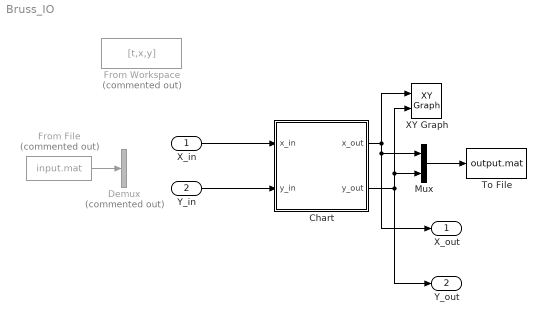
== stateflow chart Chart ==
  state Brussellator
    du:
    x_dot = 1 + x*x*y - 2.5*x;
    y_dot = 1.5*x - x*x*y;
    x_out = x;
    y_out = y;
  note: @annotation-mode=Brussellator; k=2000.0; gamma=0.0;
  (default) -> Brussellator : {x=x_in, y=y_in}
  data: x local double; y local double; x_out output double; y_out output double; x_in input double; y_in input double

//
// Academic License - for use in teaching, academic research, and meeting
// course requirements at degree granting institutions only.  Not for
// government, commercial, or other organizational use.
//
// File: Bruss_IO.cpp
//
// Code generated for Simulink model 'Bruss_IO'.
//
// Model version                  : 1.47
// Simulink Coder version         : 8.9 (R2015b) 13-Aug-2015
// C/C++ source code generated on : Fri Feb 19 22:34:44 2016
//
// Target selection: ert.tlc
// Embedded hardware selection: 32-bit Generic
// Code generation objectives: Unspecified
// Validation result: Not run
//
#include "Bruss_IO.h"
#include "Bruss_IO_private.h"

//
// This function updates continuous states using the ODE3 fixed-step
// solver algorithm
//
void Bruss_IOModelClass::rt_ertODEUpdateContinuousStates(RTWSolverInfo *si )
{
  // Solver Matrices
  static const real_T rt_ODE3_A[3] = {
    1.0/2.0, 3.0/4.0, 1.0
  };

  static const real_T rt_ODE3_B[3][3] = {
    { 1.0/2.0, 0.0, 0.0 },

    { 0.0, 3.0/4.0, 0.0 },

    { 2.0/9.0, 1.0/3.0, 4.0/9.0 }
  };

  time_T t = rtsiGetT(si);
  time_T tnew = rtsiGetSolverStopTime(si);
  time_T h = rtsiGetStepSize(si);
  real_T *x = rtsiGetContStates(si);
  ODE3_IntgData *id = (ODE3_IntgData *)rtsiGetSolverData(si);
  real_T *y = id->y;
  real_T *f0 = id->f[0];
  real_T *f1 = id->f[1];
  real_T *f2 = id->f[2];
  real_T hB[3];
  int_T i;
  int_T nXc = 2;
  rtsiSetSimTimeStep(si,MINOR_TIME_STEP);

  // Save the state values at time t in y, we'll use x as ynew.
  (void) memcpy(y, x,
                (uint_T)nXc*sizeof(real_T));

  // Assumes that rtsiSetT and ModelOutputs are up-to-date
  // f0 = f(t,y)
  rtsiSetdX(si, f0);
  Bruss_IO_derivatives();

  // f(:,2) = feval(odefile, t + hA(1), y + f*hB(:,1), args(:)(*));
  hB[0] = h * rt_ODE3_B[0][0];
  for (i = 0; i < nXc; i++) {
    x[i] = y[i] + (f0[i]*hB[0]);
  }

  rtsiSetT(si, t + h*rt_ODE3_A[0]);
  rtsiSetdX(si, f1);
  this->step();
  Bruss_IO_derivatives();

  // f(:,3) = feval(odefile, t + hA(2), y + f*hB(:,2), args(:)(*));
  for (i = 0; i <= 1; i++) {
    hB[i] = h * rt_ODE3_B[1][i];
  }

  for (i = 0; i < nXc; i++) {
    x[i] = y[i] + (f0[i]*hB[0] + f1[i]*hB[1]);
  }

  rtsiSetT(si, t + h*rt_ODE3_A[1]);
  rtsiSetdX(si, f2);
  this->step();
  Bruss_IO_derivatives();

  // tnew = t + hA(3);
  // ynew = y + f*hB(:,3);
  for (i = 0; i <= 2; i++) {
    hB[i] = h * rt_ODE3_B[2][i];
  }

  for (i = 0; i < nXc; i++) {
    x[i] = y[i] + (f0[i]*hB[0] + f1[i]*hB[1] + f2[i]*hB[2]);
  }

  rtsiSetT(si, tnew);
  rtsiSetSimTimeStep(si,MAJOR_TIME_STEP);
}

// Model step function
void Bruss_IOModelClass::step()
{
  boolean_T stateChanged;
  if (rtmIsMajorTimeStep((&Bruss_IO_M))) {
    // set solver stop time
    rtsiSetSolverStopTime(&(&Bruss_IO_M)->solverInfo,(((&Bruss_IO_M)
      ->Timing.clockTick0+1)*(&Bruss_IO_M)->Timing.stepSize0));
  }                                    // end MajorTimeStep

  // Update absolute time of base rate at minor time step
  if (rtmIsMinorTimeStep((&Bruss_IO_M))) {
    (&Bruss_IO_M)->Timing.t[0] = rtsiGetT(&(&Bruss_IO_M)->solverInfo);
  }

  // Chart: '<Root>/Chart' incorporates:
  //   Inport: '<Root>/X_in'
  //   Inport: '<Root>/Y_in'

  if (rtmIsMajorTimeStep((&Bruss_IO_M))) {
    stateChanged = 0;

    // Gateway: Chart
    // During: Chart
    if (Bruss_IO_DW.is_active_c1_Bruss_IO == 0U) {
      // Entry: Chart
      Bruss_IO_DW.is_active_c1_Bruss_IO = 1U;

      // Entry Internal: Chart
      // Transition: '<S1>:18'
      Bruss_IO_X.SFunction_CSTATE[0] = Bruss_IO_U.X_in;
      Bruss_IO_X.SFunction_CSTATE[1] = Bruss_IO_U.Y_in;
      stateChanged = true;
    } else {
      // During 'Brussellator': '<S1>:10'
    }

    if (stateChanged) {
      rtsiSetSolverNeedsReset(&(&Bruss_IO_M)->solverInfo, true);
    }
  }

  // Outport: '<Root>/X_out' incorporates:
  //   Chart: '<Root>/Chart'

  // During 'Brussellator': '<S1>:10'
  Bruss_IO_Y.X_out = Bruss_IO_X.SFunction_CSTATE[0];

  // Outport: '<Root>/Y_out' incorporates:
  //   Chart: '<Root>/Chart'

  Bruss_IO_Y.Y_out = Bruss_IO_X.SFunction_CSTATE[1];
  if (rtmIsMajorTimeStep((&Bruss_IO_M))) {
    rt_ertODEUpdateContinuousStates(&(&Bruss_IO_M)->solverInfo);

    // Update absolute time for base rate
    // The "clockTick0" counts the number of times the code of this task has
    //  been executed. The absolute time is the multiplication of "clockTick0"
    //  and "Timing.stepSize0". Size of "clockTick0" ensures timer will not
    //  overflow during the application lifespan selected.

    ++(&Bruss_IO_M)->Timing.clockTick0;
    (&Bruss_IO_M)->Timing.t[0] = rtsiGetSolverStopTime(&(&Bruss_IO_M)
      ->solverInfo);

    {
      // Update absolute timer for sample time: [0.2s, 0.0s]
      // The "clockTick1" counts the number of times the code of this task has
      //  been executed. The resolution of this integer timer is 0.2, which is the step size
      //  of the task. Size of "clockTick1" ensures timer will not overflow during the
      //  application lifespan selected.

      (&Bruss_IO_M)->Timing.clockTick1++;
    }
  }                                    // end MajorTimeStep
}
